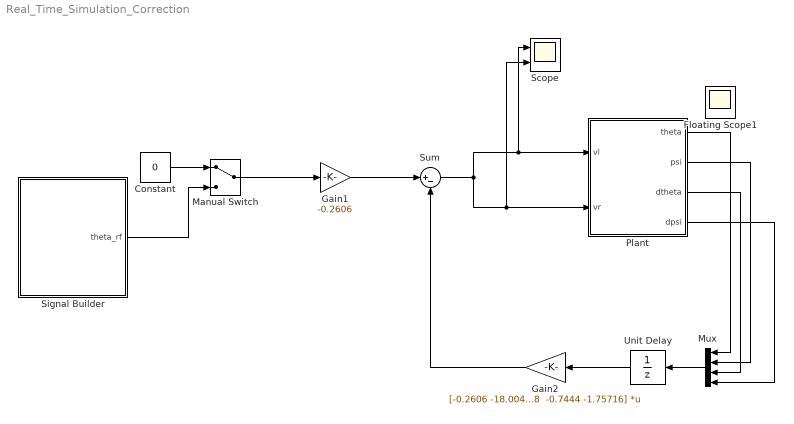
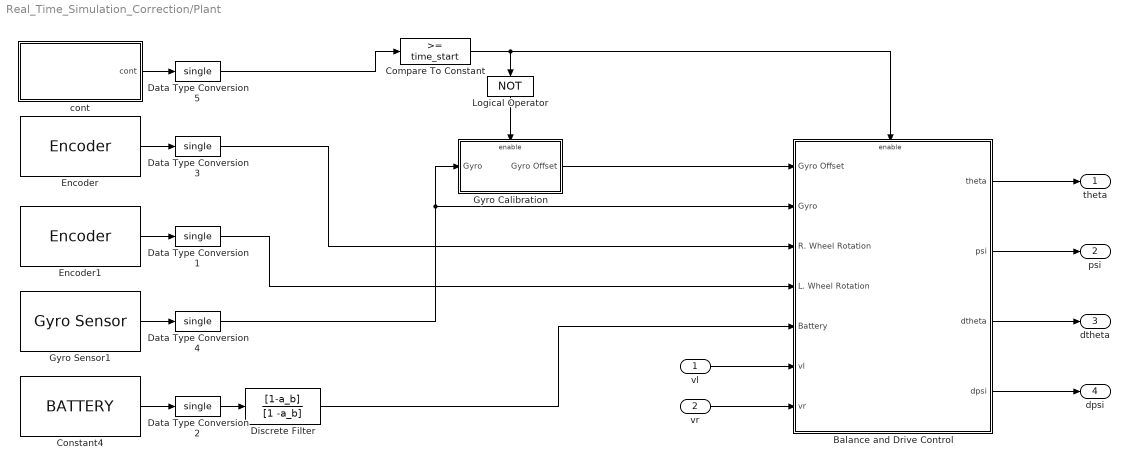
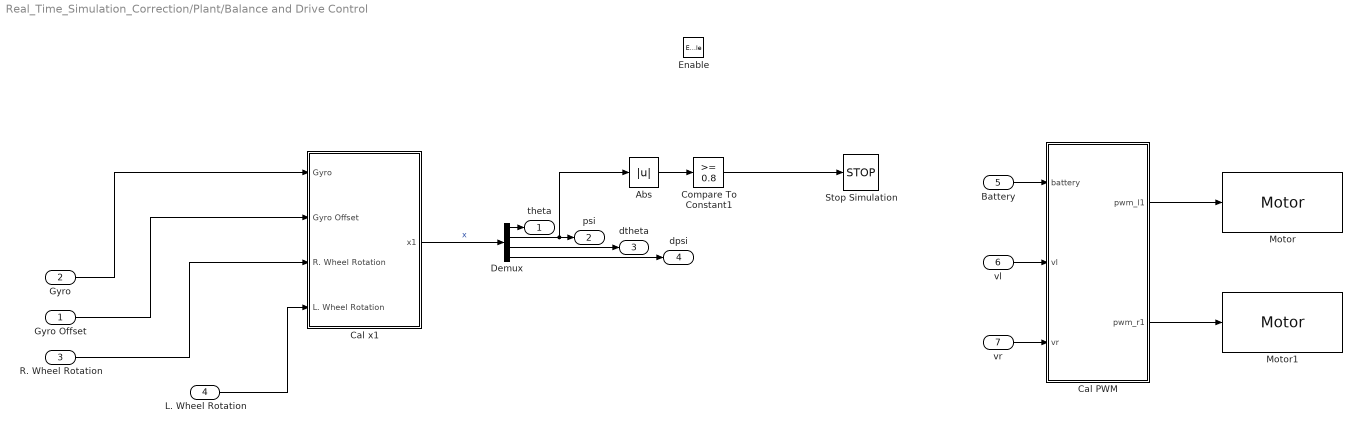
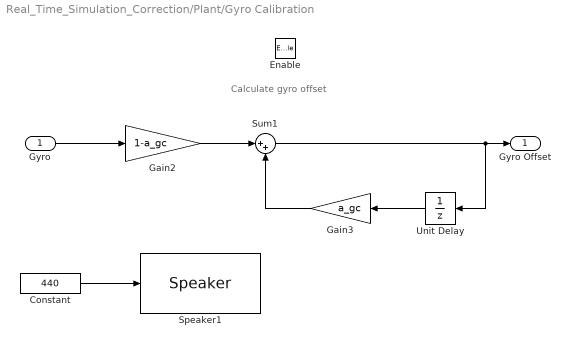
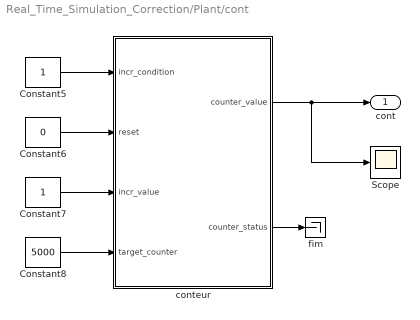
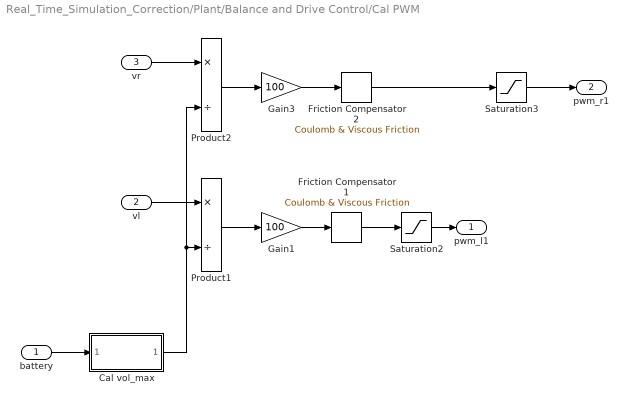
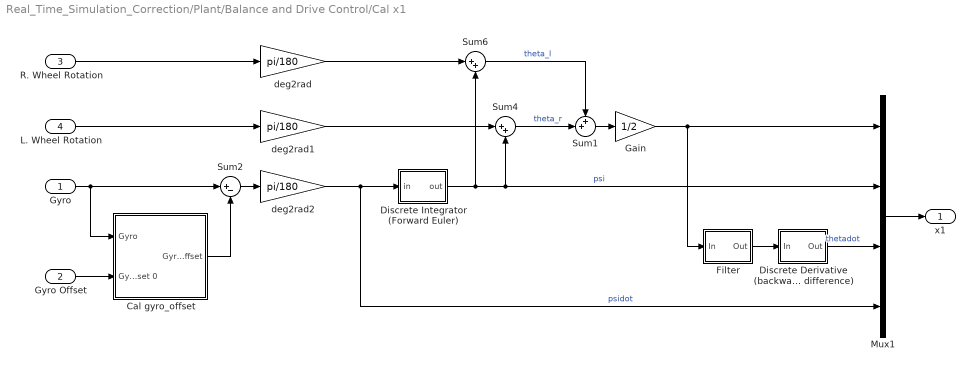
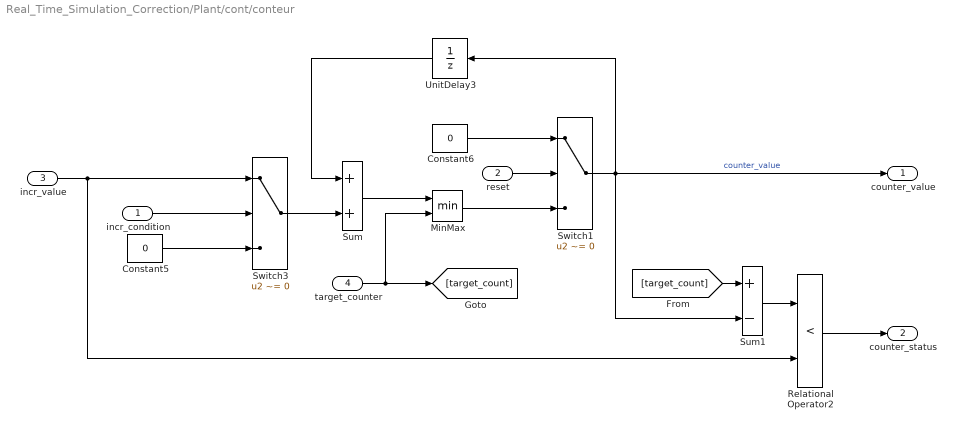
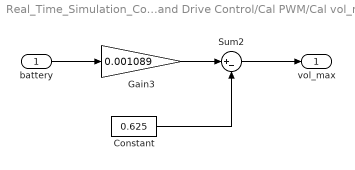
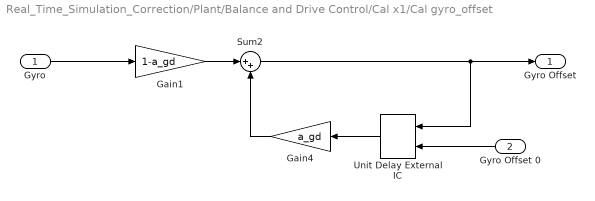
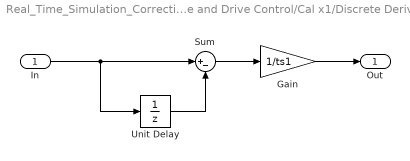
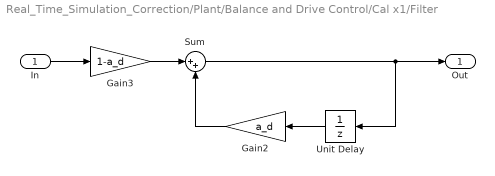
== system Real_Time_Simulation_Correction/Signal Builder ==
  Demux : Demux  Tag=STV Demux  Outputs=1
  FromWs : FromWorkspace  Tag=STV FromWs  VariableName=tuvar
  theta_rf : Outport  Tag=STV Outport
  wires:
  FromWs/1 -> Demux/1
  Demux/1 -> theta_rf/1

== system Real_Time_Simulation_Correction/Plant/Balance and Drive Control/Cal x1/Discrete Integrator (Forward Euler) ==
  in : Inport
  Gain : Gain  Gain=ts1  OutDataTypeStr=Inherit: Same as input  ParamDataTypeStr=Inherit: Same as input
  Sum : Sum  Inputs=|++  OutDataTypeStr=Inherit: Same as first input
  Unit Delay : UnitDelay  SampleTime=-1  HasFrameUpgradeWarning=on
  out : Outport
  wires:
  Unit Delay/1 -> Sum/2, out/1
  Gain/1 -> Sum/1
  Sum/1 -> Unit Delay/1
  in/1 -> Gain/1

/*
 * Classroom License -- for classroom instructional use only.  Not for
 * government, commercial, academic research, or other organizational use.
 *
 * File: Real_Time_Simulation_Correction.c
 *
 * Code generated for Simulink model 'Real_Time_Simulation_Correction'.
 *
 * Model version                  : 1.920
 * Simulink Coder version         : 9.3 (R2020a) 18-Nov-2019
 * C/C++ source code generated on : Mon Jul 20 17:19:13 2026
 *
 * Target selection: ert.tlc
 * Embedded hardware selection: ARM Compatible->ARM 9
 * Code generation objectives: Unspecified
 * Validation result: Not run
 */

#include "Real_Time_Simulation_Correction.h"
#include "Real_Time_Simulation_Correction_private.h"
#include "Real_Time_Simulation_Correction_dt.h"

/* Block signals (default storage) */
BlockIO_Real_Time_Simulation_Co Real_Time_Simulation_Correcti_B;

/* Block states (default storage) */
D_Work_Real_Time_Simulation_Cor Real_Time_Simulation_Corr_DWork;

/* Real-time model */
RT_MODEL_Real_Time_Simulation_C Real_Time_Simulation_Correct_M_;
RT_MODEL_Real_Time_Simulation_C *const Real_Time_Simulation_Correct_M =
  &Real_Time_Simulation_Correct_M_;
static void rate_scheduler(void);

/*
 *   This function updates active task flag for each subrate.
 * The function is called at model base rate, hence the
 * generated code self-manages all its subrates.
 */
static void rate_scheduler(void)
{
  /* Compute which subrates run during the next base time step.  Subrates
   * are an integer multiple of the base rate counter.  Therefore, the subtask
   * counter is reset when it reaches its limit (zero means run).
   */
  (Real_Time_Simulation_Correct_M->Timing.TaskCounters.TID[2])++;
  if ((Real_Time_Simulation_Correct_M->Timing.TaskCounters.TID[2]) > 49) {/* Sample time: [0.2s, 0.0s] */
    Real_Time_Simulation_Correct_M->Timing.TaskCounters.TID[2] = 0;
  }
}

/* Model step function */
void Real_Time_Simulation_Correction_step(void)
{
  /* local block i/o variables */
  real_T rtb_Saturation3;
  real32_T rtb_Sum2;
  real32_T rtb_Sum;
  real32_T rtb_Sum_nvdedzgoqp;
  int32_T rtb_Encoder1_0;
  int32_T rtb_Encoder1_1;
  int32_T rtb_Encoder1_2;
  int8_T tmp;
  boolean_T Compare;
  real32_T u0;
  real_T tmp_0;
  real_T rtb_Saturation3_tmp;

  /* Reset subsysRan breadcrumbs */
  srClearBC(Real_Time_Simulation_Corr_DWork.BalanceandDriveControl_SubsysRa);

  /* Reset subsysRan breadcrumbs */
  srClearBC(Real_Time_Simulation_Corr_DWork.GyroCalibration_SubsysRanBC);

  /* FromWorkspace: '<S2>/FromWs' */
  {
    real_T *pDataValues = (real_T *)
      Real_Time_Simulation_Corr_DWork.FromWs_PWORK.DataPtr;
    real_T *pTimeValues = (real_T *)
      Real_Time_Simulation_Corr_DWork.FromWs_PWORK.TimePtr;
    int_T currTimeIndex = Real_Time_Simulation_Corr_DWork.FromWs_IWORK.PrevIndex;
    real_T t = Real_Time_Simulation_Correct_M->Timing.t[0];

    /* Get index */
    if (t <= pTimeValues[0]) {
      currTimeIndex = 0;
    } else if (t >= pTimeValues[7]) {
      currTimeIndex = 6;
    } else {
      if (t < pTimeValues[currTimeIndex]) {
        while (t < pTimeValues[currTimeIndex]) {
          currTimeIndex--;
        }
      } else {
        while (t >= pTimeValues[currTimeIndex + 1]) {
          currTimeIndex++;
        }
      }
    }

    Real_Time_Simulation_Corr_DWork.FromWs_IWORK.PrevIndex = currTimeIndex;

    /* Post output */
    {
      real_T t1 = pTimeValues[currTimeIndex];
      real_T t2 = pTimeValues[currTimeIndex + 1];
      if (t1 == t2) {
        if (t < t1) {
          rtb_Saturation3 = pDataValues[currTimeIndex];
        } else {
          rtb_Saturation3 = pDataValues[currTimeIndex + 1];
        }
      } else {
        real_T f1 = (t2 - t) / (t2 - t1);
        real_T f2 = 1.0 - f1;
        real_T d1;
        real_T d2;
        int_T TimeIndex= currTimeIndex;
        d1 = pDataValues[TimeIndex];
        d2 = pDataValues[TimeIndex + 1];
        rtb_Saturation3 = (real_T) rtInterpolate(d1, d2, f1, f2);
        pDataValues += 8;
      }
    }
  }

  /* ManualSwitch: '<Root>/Manual Switch' incorporates:
   *  Constant: '<Root>/Constant'
   */
  if (Real_Time_Simulation_Correcti_P.ManualSwitch_CurrentSetting == 1) {
    rtb_Saturation3 = Real_Time_Simulation_Correcti_P.Constant_Value;
  }

  /* End of ManualSwitch: '<Root>/Manual Switch' */

  /* Sum: '<Root>/Sum' incorporates:
   *  Gain: '<Root>/Gain1'
   *  Gain: '<Root>/Gain2'
   *  UnitDelay: '<Root>/Unit Delay'
   */
  Real_Time_Simulation_Correcti_B.Sum =
    Real_Time_Simulation_Correcti_P.Gain1_Gain_cpx4lbewpy * rtb_Saturation3 -
    (((Real_Time_Simulation_Correcti_P.Gain2_Gain_ezbw1uq0ur[0] *
       Real_Time_Simulation_Corr_DWork.UnitDelay_DSTATE[0] +
       Real_Time_Simulation_Correcti_P.Gain2_Gain_ezbw1uq0ur[1] *
       Real_Time_Simulation_Corr_DWork.UnitDelay_DSTATE[1]) +
      Real_Time_Simulation_Correcti_P.Gain2_Gain_ezbw1uq0ur[2] *
      Real_Time_Simulation_Corr_DWork.UnitDelay_DSTATE[2]) +
     Real_Time_Simulation_Correcti_P.Gain2_Gain_ezbw1uq0ur[3] *
     Real_Time_Simulation_Corr_DWork.UnitDelay_DSTATE[3]);

  /* S-Function (ev3_gyro_sensor): '<S1>/Gyro Sensor1' */
  rtb_Encoder1_0 = getGyroSensorValue(4U);

  /* Switch: '<S21>/Switch1' incorporates:
   *  Constant: '<S21>/Constant6'
   *  Constant: '<S6>/Constant5'
   *  Constant: '<S6>/Constant6'
   *  Switch: '<S21>/Switch3'
   */
  if (Real_Time_Simulation_Correcti_P.Constant6_Value_hyqvqn5fwb != 0.0F) {
    Real_Time_Simulation_Correcti_B.counter_value =
      Real_Time_Simulation_Correcti_P.Constant6_Value;
  } else {
    if (Real_Time_Simulation_Correcti_P.Constant5_Value_jhrxeiwmg5 != 0.0F) {
      /* Switch: '<S21>/Switch3' incorporates:
       *  Constant: '<S6>/Constant7'
       */
      u0 = Real_Time_Simulation_Correcti_P.Constant7_Value;
    } else {
      /* Switch: '<S21>/Switch3' incorporates:
       *  Constant: '<S21>/Constant5'
       */
      u0 = Real_Time_Simulation_Correcti_P.Constant5_Value;
    }

    /* Sum: '<S21>/Sum' incorporates:
     *  UnitDelay: '<S21>/UnitDelay3'
     */
    u0 += Real_Time_Simulation_Corr_DWork.UnitDelay3_DSTATE;

    /* MinMax: '<S21>/MinMax' incorporates:
     *  Constant: '<S6>/Constant8'
     */
    if ((u0 < Real_Time_Simulation_Correcti_P.Constant8_Value) || rtIsNaNF
        (Real_Time_Simulation_Correcti_P.Constant8_Value)) {
      Real_Time_Simulation_Correcti_B.counter_value = u0;
    } else {
      Real_Time_Simulation_Correcti_B.counter_value =
        Real_Time_Simulation_Correcti_P.Constant8_Value;
    }

    /* End of MinMax: '<S21>/MinMax' */
  }

  /* End of Switch: '<S21>/Switch1' */

  /* RelationalOperator: '<S4>/Compare' incorporates:
   *  Constant: '<S4>/Constant'
   */
  Compare = (Real_Time_Simulation_Correcti_B.counter_value >=
             Real_Time_Simulation_Correcti_P.time_start);

  /* Outputs for Enabled SubSystem: '<S1>/Gyro Calibration' incorporates:
   *  EnablePort: '<S5>/Enable'
   */
  /* Logic: '<S1>/Logical Operator' */
  if (!Compare) {
    if (1) {
      /* Sum: '<S5>/Sum1' incorporates:
       *  DataTypeConversion: '<S1>/Data Type Conversion4'
       *  Gain: '<S5>/Gain2'
       *  Gain: '<S5>/Gain3'
       *  S-Function (ev3_gyro_sensor): '<S1>/Gyro Sensor1'
       *  UnitDelay: '<S5>/Unit Delay'
       */
      Real_Time_Simulation_Correcti_B.Sum1 =
        Real_Time_Simulation_Correcti_P.Gain2_Gain * (real32_T)rtb_Encoder1_0 +
        Real_Time_Simulation_Correcti_P.a_gc *
        Real_Time_Simulation_Corr_DWork.UnitDelay_DSTATE_cfkvxtl130;
    }

    if (Real_Time_Simulation_Correct_M->Timing.TaskCounters.TID[2] == 0) {
      /* S-Function (ev3_speaker): '<S20>/Speaker' incorporates:
       *  Constant: '<S5>/Constant'
       */
      playSoundFreqOnly
        (Real_Time_Simulation_Correcti_P.Constant_Value_aljrxhz2pj,
         Real_Time_Simulation_Correcti_P.Speaker_speakerVolume,
         Real_Time_Simulation_Correcti_P.Speaker_p4);
    }

    if (1) {
      /* Update for UnitDelay: '<S5>/Unit Delay' */
      Real_Time_Simulation_Corr_DWork.UnitDelay_DSTATE_cfkvxtl130 =
        Real_Time_Simulation_Correcti_B.Sum1;
    }

    srUpdateBC(Real_Time_Simulation_Corr_DWork.GyroCalibration_SubsysRanBC);
  }

  /* End of Logic: '<S1>/Logical Operator' */
  /* End of Outputs for SubSystem: '<S1>/Gyro Calibration' */

  /* S-Function (ev3_encoder): '<S1>/Encoder' */
  rtb_Encoder1_1 = getEncoderValueNoReset(2U);

  /* S-Function (ev3_encoder): '<S1>/Encoder1' */
  rtb_Encoder1_2 = getEncoderValueNoReset(3U);

  /* DiscreteFilter: '<S1>/Discrete Filter' incorporates:
   *  Constant: '<S1>/Constant4'
   */
  Real_Time_Simulation_Corr_DWork.DiscreteFilter_tmp =
    (Real_Time_Simulation_Correcti_P.BATTERY -
     Real_Time_Simulation_Correcti_P.DiscreteFilter_DenCoef[1] *
     Real_Time_Simulation_Corr_DWork.DiscreteFilter_states) /
    Real_Time_Simulation_Correcti_P.DiscreteFilter_DenCoef[0];

  /* Outputs for Enabled SubSystem: '<S1>/Balance and Drive Control' incorporates:
   *  EnablePort: '<S3>/Enable'
   */
  Real_Time_Simulation_Corr_DWork.BalanceandDriveControl_MODE = Compare;
  if (Real_Time_Simulation_Corr_DWork.BalanceandDriveControl_MODE) {
    /* UnitDelay: '<S17>/Unit Delay' */
    Real_Time_Simulation_Correcti_B.UnitDelay =
      Real_Time_Simulation_Corr_DWork.UnitDelay_DSTATE_hzuovbre5y;

    /* Stop: '<S3>/Stop Simulation' incorporates:
     *  Abs: '<S3>/Abs'
     *  Constant: '<S9>/Constant'
     *  RelationalOperator: '<S9>/Compare'
     */
    if ((real32_T)fabs(Real_Time_Simulation_Correcti_B.UnitDelay) >=
        Real_Time_Simulation_Correcti_P.CompareToConstant1_const) {
      rtmSetStopRequested(Real_Time_Simulation_Correct_M, 1);
    }

    /* End of Stop: '<S3>/Stop Simulation' */

    /* Switch: '<S19>/Init' incorporates:
     *  UnitDelay: '<S19>/FixPt Unit Delay1'
     *  UnitDelay: '<S19>/FixPt Unit Delay2'
     */
    if (Real_Time_Simulation_Corr_DWork.FixPtUnitDelay2_DSTATE != 0) {
      u0 = Real_Time_Simulation_Correcti_B.Sum1;
    } else {
      u0 = Real_Time_Simulation_Corr_DWork.FixPtUnitDelay1_DSTATE;
    }

    /* End of Switch: '<S19>/Init' */

    /* Sum: '<S15>/Sum2' incorporates:
     *  DataTypeConversion: '<S1>/Data Type Conversion4'
     *  Gain: '<S15>/Gain1'
     *  Gain: '<S15>/Gain4'
     *  S-Function (ev3_gyro_sensor): '<S1>/Gyro Sensor1'
     */
    rtb_Sum2 = Real_Time_Simulation_Correcti_P.Gain1_Gain_j0r0df4nzm * (real32_T)
      rtb_Encoder1_0 + Real_Time_Simulation_Correcti_P.a_gd * u0;

    /* Gain: '<S8>/Gain' incorporates:
     *  DataTypeConversion: '<S1>/Data Type Conversion1'
     *  DataTypeConversion: '<S1>/Data Type Conversion3'
     *  Gain: '<S8>/deg2rad'
     *  Gain: '<S8>/deg2rad1'
     *  S-Function (ev3_encoder): '<S1>/Encoder'
     *  S-Function (ev3_encoder): '<S1>/Encoder1'
     *  Sum: '<S8>/Sum1'
     *  Sum: '<S8>/Sum4'
     *  Sum: '<S8>/Sum6'
     */
    Real_Time_Simulation_Correcti_B.Gain =
      ((Real_Time_Simulation_Correcti_P.deg2rad_Gain * (real32_T)rtb_Encoder1_1
        + Real_Time_Simulation_Correcti_B.UnitDelay) +
       (Real_Time_Simulation_Correcti_P.deg2rad1_Gain * (real32_T)rtb_Encoder1_2
        + Real_Time_Simulation_Correcti_B.UnitDelay)) *
      Real_Time_Simulation_Correcti_P.Gain_Gain;

    /* Sum: '<S18>/Sum' incorporates:
     *  Gain: '<S18>/Gain2'
     *  Gain: '<S18>/Gain3'
     *  UnitDelay: '<S18>/Unit Delay'
     */
    rtb_Sum = Real_Time_Simulation_Correcti_P.Gain3_Gain_hka0xvmyzz *
      Real_Time_Simulation_Correcti_B.Gain + Real_Time_Simulation_Correcti_P.a_d
      * Real_Time_Simulation_Corr_DWork.UnitDelay_DSTATE_orvhqhlbcp;

    /* Gain: '<S16>/Gain' incorporates:
     *  Sum: '<S16>/Sum'
     *  UnitDelay: '<S16>/Unit Delay'
     */
    Real_Time_Simulation_Correcti_B.Gain_oopwalytwu = (rtb_Sum -
      Real_Time_Simulation_Corr_DWork.UnitDelay_DSTATE_mjna1kxy33) *
      Real_Time_Simulation_Correcti_P.Gain_Gain_bwkvwsewsv;

    /* Gain: '<S8>/deg2rad2' incorporates:
     *  DataTypeConversion: '<S1>/Data Type Conversion4'
     *  S-Function (ev3_gyro_sensor): '<S1>/Gyro Sensor1'
     *  Sum: '<S8>/Sum2'
     */
    Real_Time_Simulation_Correcti_B.psidot = ((real32_T)rtb_Encoder1_0 -
      rtb_Sum2) * Real_Time_Simulation_Correcti_P.deg2rad2_Gain;

    /* Sum: '<S17>/Sum' incorporates:
     *  Gain: '<S17>/Gain'
     */
    rtb_Sum_nvdedzgoqp = Real_Time_Simulation_Correcti_P.ts1 *
      Real_Time_Simulation_Correcti_B.psidot +
      Real_Time_Simulation_Correcti_B.UnitDelay;

    /* Product: '<S7>/Product1' incorporates:
     *  Constant: '<S12>/Constant'
     *  DiscreteFilter: '<S1>/Discrete Filter'
     *  Gain: '<S12>/Gain3'
     *  Product: '<S7>/Product2'
     *  Sum: '<S12>/Sum2'
     */
    rtb_Saturation3_tmp = Real_Time_Simulation_Correcti_B.Sum /
      (Real_Time_Simulation_Correcti_P.DiscreteFilter_NumCoef *
       Real_Time_Simulation_Corr_DWork.DiscreteFilter_tmp *
       Real_Time_Simulation_Correcti_P.Gain3_Gain_gjv3wryppp -
       Real_Time_Simulation_Correcti_P.Constant_Value_kzvkk53bcx);
    rtb_Saturation3 = rtb_Saturation3_tmp;

    /* Gain: '<S7>/Gain1' */
    rtb_Saturation3 *= Real_Time_Simulation_Correcti_P.Gain1_Gain;

    /* Signum: '<S13>/Sign' */
    if (rtb_Saturation3 < 0.0) {
      tmp_0 = -1.0;
    } else if (rtb_Saturation3 > 0.0) {
      tmp_0 = 1.0;
    } else if (rtb_Saturation3 == 0.0) {
      tmp_0 = 0.0;
    } else {
      tmp_0 = (rtNaN);
    }

    /* End of Signum: '<S13>/Sign' */

    /* Sum: '<S13>/Sum' incorporates:
     *  Gain: '<S13>/Gain'
     *  Gain: '<S13>/Gain1'
     */
    rtb_Saturation3 = Real_Time_Simulation_Correcti_P.pwm_offset * tmp_0 +
      Real_Time_Simulation_Correcti_P.pwm_gain * rtb_Saturation3;

    /* Saturate: '<S7>/Saturation2' */
    if (rtb_Saturation3 > Real_Time_Simulation_Correcti_P.Saturation2_UpperSat)
    {
      rtb_Saturation3 = Real_Time_Simulation_Correcti_P.Saturation2_UpperSat;
    } else {
      if (rtb_Saturation3 < Real_Time_Simulation_Correcti_P.Saturation2_LowerSat)
      {
        rtb_Saturation3 = Real_Time_Simulation_Correcti_P.Saturation2_LowerSat;
      }
    }

    /* End of Saturate: '<S7>/Saturation2' */

    /* DataTypeConversion: '<S10>/Data Type Conversion' */
    tmp_0 = floor(rtb_Saturation3);
    if (tmp_0 < 128.0) {
      if (tmp_0 >= -128.0) {
        /* S-Function (ev3_motor): '<S10>/Motor' */
        tmp = (int8_T)tmp_0;
      } else {
        /* S-Function (ev3_motor): '<S10>/Motor' */
        tmp = MIN_int8_T;
      }
    } else {
      /* S-Function (ev3_motor): '<S10>/Motor' */
      tmp = MAX_int8_T;
    }

    /* End of DataTypeConversion: '<S10>/Data Type Conversion' */

    /* S-Function (ev3_motor): '<S10>/Motor' */
    setMotor(&tmp, 2U, 2U);

    /* Product: '<S7>/Product2' */
    rtb_Saturation3 = rtb_Saturation3_tmp;

    /* Gain: '<S7>/Gain3' */
    rtb_Saturation3 *= Real_Time_Simulation_Correcti_P.Gain3_Gain;

    /* Signum: '<S14>/Sign' */
    if (rtb_Saturation3 < 0.0) {
      tmp_0 = -1.0;
    } else if (rtb_Saturation3 > 0.0) {
      tmp_0 = 1.0;
    } else if (rtb_Saturation3 == 0.0) {
      tmp_0 = 0.0;
    } else {
      tmp_0 = (rtNaN);
    }

    /* End of Signum: '<S14>/Sign' */

    /* Sum: '<S14>/Sum' incorporates:
     *  Gain: '<S14>/Gain'
     *  Gain: '<S14>/Gain1'
     */
    rtb_Saturation3 = Real_Time_Simulation_Correcti_P.pwm_offset * tmp_0 +
      Real_Time_Simulation_Correcti_P.pwm_gain * rtb_Saturation3;

    /* Saturate: '<S7>/Saturation3' */
    if (rtb_Saturation3 > Real_Time_Simulation_Correcti_P.Saturation3_UpperSat)
    {
      rtb_Saturation3 = Real_Time_Simulation_Correcti_P.Saturation3_UpperSat;
    } else {
      if (rtb_Saturation3 < Real_Time_Simulation_Correcti_P.Saturation3_LowerSat)
      {
        rtb_Saturation3 = Real_Time_Simulation_Correcti_P.Saturation3_LowerSat;
      }
    }

    /* End of Saturate: '<S7>/Saturation3' */

    /* DataTypeConversion: '<S11>/Data Type Conversion' */
    tmp_0 = floor(rtb_Saturation3);
    if (tmp_0 < 128.0) {
      if (tmp_0 >= -128.0) {
        /* S-Function (ev3_motor): '<S11>/Motor' */
        tmp = (int8_T)tmp_0;
      } else {
        /* S-Function (ev3_motor): '<S11>/Motor' */
        tmp = MIN_int8_T;
      }
    } else {
      /* S-Function (ev3_motor): '<S11>/Motor' */
      tmp = MAX_int8_T;
    }

    /* End of DataTypeConversion: '<S11>/Data Type Conversion' */

    /* S-Function (ev3_motor): '<S11>/Motor' */
    setMotor(&tmp, 3U, 2U);
    srUpdateBC(Real_Time_Simulation_Corr_DWork.BalanceandDriveControl_SubsysRa);
  }

  /* End of Outputs for SubSystem: '<S1>/Balance and Drive Control' */

  /* Update for UnitDelay: '<Root>/Unit Delay' */
  Real_Time_Simulation_Corr_DWork.UnitDelay_DSTATE[0] =
    Real_Time_Simulation_Correcti_B.Gain;
  Real_Time_Simulation_Corr_DWork.UnitDelay_DSTATE[1] =
    Real_Time_Simulation_Correcti_B.UnitDelay;
  Real_Time_Simulation_Corr_DWork.UnitDelay_DSTATE[2] =
    Real_Time_Simulation_Correcti_B.Gain_oopwalytwu;
  Real_Time_Simulation_Corr_DWork.UnitDelay_DSTATE[3] =
    Real_Time_Simulation_Correcti_B.psidot;

  /* Update for UnitDelay: '<S21>/UnitDelay3' */
  Real_Time_Simulation_Corr_DWork.UnitDelay3_DSTATE =
    Real_Time_Simulation_Correcti_B.counter_value;

  /* Update for DiscreteFilter: '<S1>/Discrete Filter' */
  Real_Time_Simulation_Corr_DWork.DiscreteFilter_states =
    Real_Time_Simulation_Corr_DWork.DiscreteFilter_tmp;

  /* Update for Enabled SubSystem: '<S1>/Balance and Drive Control' incorporates:
   *  EnablePort: '<S3>/Enable'
   */
  if (Real_Time_Simulation_Corr_DWork.BalanceandDriveControl_MODE) {
    /* Update for UnitDelay: '<S17>/Unit Delay' */
    Real_Time_Simulation_Corr_DWork.UnitDelay_DSTATE_hzuovbre5y =
      rtb_Sum_nvdedzgoqp;

    /* Update for UnitDelay: '<S19>/FixPt Unit Delay2' incorporates:
     *  Constant: '<S19>/FixPt Constant'
     */
    Real_Time_Simulation_Corr_DWork.FixPtUnitDelay2_DSTATE =
      Real_Time_Simulation_Correcti_P.FixPtConstant_Value;

    /* Update for UnitDelay: '<S19>/FixPt Unit Delay1' */
    Real_Time_Simulation_Corr_DWork.FixPtUnitDelay1_DSTATE = rtb_Sum2;

    /* Update for UnitDelay: '<S18>/Unit Delay' */
    Real_Time_Simulation_Corr_DWork.UnitDelay_DSTATE_orvhqhlbcp = rtb_Sum;

    /* Update for UnitDelay: '<S16>/Unit Delay' */
    Real_Time_Simulation_Corr_DWork.UnitDelay_DSTATE_mjna1kxy33 = rtb_Sum;
  }

  /* End of Update for SubSystem: '<S1>/Balance and Drive Control' */

  /* External mode */
  rtExtModeUploadCheckTrigger(3);

  {                                    /* Sample time: [0.0s, 0.0s] */
    rtExtModeUpload(0, (real_T)Real_Time_Simulation_Correct_M->Timing.t[0]);
  }

  {                                    /* Sample time: [0.004s, 0.0s] */
    rtExtModeUpload(1, (real_T)
                    (((Real_Time_Simulation_Correct_M->Timing.clockTick1+
                       Real_Time_Simulation_Correct_M->Timing.clockTickH1*
                       4294967296.0)) * 0.004));
  }

  if (Real_Time_Simulation_Correct_M->Timing.TaskCounters.TID[2] == 0) {/* Sample time: [0.2s, 0.0s] */
    rtExtModeUpload(2, (real_T)
                    (((Real_Time_Simulation_Correct_M->Timing.clockTick2+
                       Real_Time_Simulation_Correct_M->Timing.clockTickH2*
                       4294967296.0)) * 0.2));
  }

  /* signal main to stop simulation */
  {                                    /* Sample time: [0.0s, 0.0s] */
    if ((rtmGetTFinal(Real_Time_Simulation_Correct_M)!=-1) &&
        !((rtmGetTFinal(Real_Time_Simulation_Correct_M)-
           Real_Time_Simulation_Correct_M->Timing.t[0]) >
          Real_Time_Simulation_Correct_M->Timing.t[0] * (DBL_EPSILON))) {
      rtmSetErrorStatus(Real_Time_Simulation_Correct_M, "Simulation finished");
    }

    if (rtmGetStopRequested(Real_Time_Simulation_Correct_M)) {
      rtmSetErrorStatus(Real_Time_Simulation_Correct_M, "Simulation finished");
    }
  }

  /* Update absolute time for base rate */
  /* The "clockTick0" counts the number of times the code of this task has
   * been executed. The absolute time is the multiplication of "clockTick0"
   * and "Timing.stepSize0". Size of "clockTick0" ensures timer will not
   * overflow during the application lifespan selected.
   * Timer of this task consists of two 32 bit unsigned integers.
   * The two integers represent the low bits Timing.clockTick0 and the high bits
   * Timing.clockTickH0. When the low bit overflows to 0, the high bits increment.
   */
  if (!(++Real_Time_Simulation_Correct_M->Timing.clockTick0)) {
    ++Real_Time_Simulation_Correct_M->Timing.clockTickH0;
  }

  Real_Time_Simulation_Correct_M->Timing.t[0] =
    Real_Time_Simulation_Correct_M->Timing.clockTick0 *
    Real_Time_Simulation_Correct_M->Timing.stepSize0 +
    Real_Time_Simulation_Correct_M->Timing.clockTickH0 *
    Real_Time_Simulation_Correct_M->Timing.stepSize0 * 4294967296.0;

  {
    /* Update absolute timer for sample time: [0.004s, 0.0s] */
    /* The "clockTick1" counts the number of times the code of this task has
     * been executed. The resolution of this integer timer is 0.004, which is the step size
     * of the task. Size of "clockTick1" ensures timer will not overflow during the
     * application lifespan selected.
     * Timer of this task consists of two 32 bit unsigned integers.
     * The two integers represent the low bits Timing.clockTick1 and the high bits
     * Timing.clockTickH1. When the low bit overflows to 0, the high bits increment.
     */
    Real_Time_Simulation_Correct_M->Timing.clockTick1++;
    if (!Real_Time_Simulation_Correct_M->Timing.clockTick1) {
      Real_Time_Simulation_Correct_M->Timing.clockTickH1++;
    }
  }

  if (Real_Time_Simulation_Correct_M->Timing.TaskCounters.TID[2] == 0) {
    /* Update absolute timer for sample time: [0.2s, 0.0s] */
    /* The "clockTick2" counts the number of times the code of this task has
     * been executed. The resolution of this integer timer is 0.2, which is the step size
     * of the task. Size of "clockTick2" ensures timer will not overflow during the
     * application lifespan selected.
     * Timer of this task consists of two 32 bit unsigned integers.
     * The two integers represent the low bits Timing.clockTick2 and the high bits
     * Timing.clockTickH2. When the low bit overflows to 0, the high bits increment.
     */
    Real_Time_Simulation_Correct_M->Timing.clockTick2++;
    if (!Real_Time_Simulation_Correct_M->Timing.clockTick2) {
      Real_Time_Simulation_Correct_M->Timing.clockTickH2++;
    }
  }

  rate_scheduler();
}
